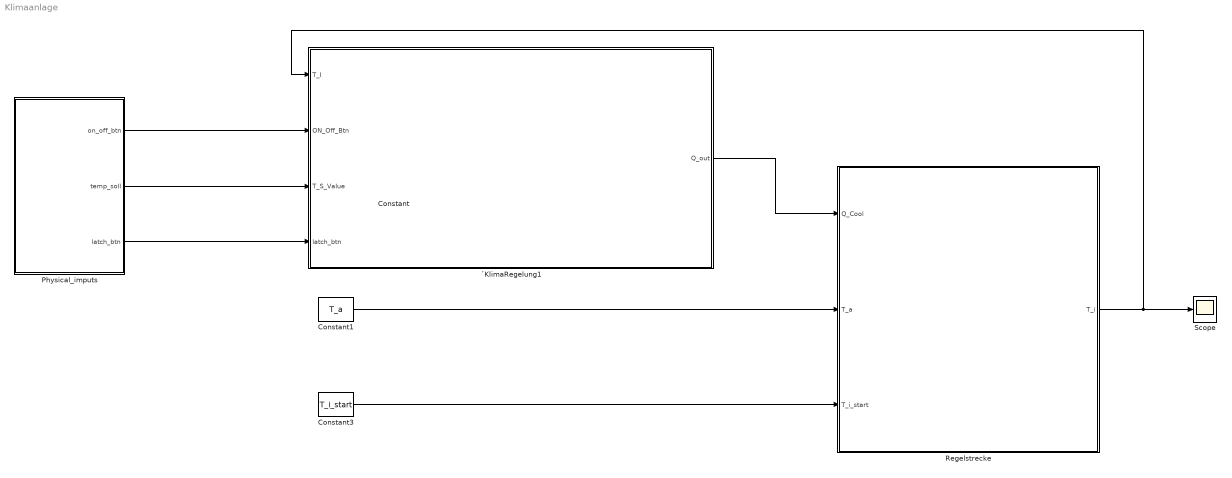
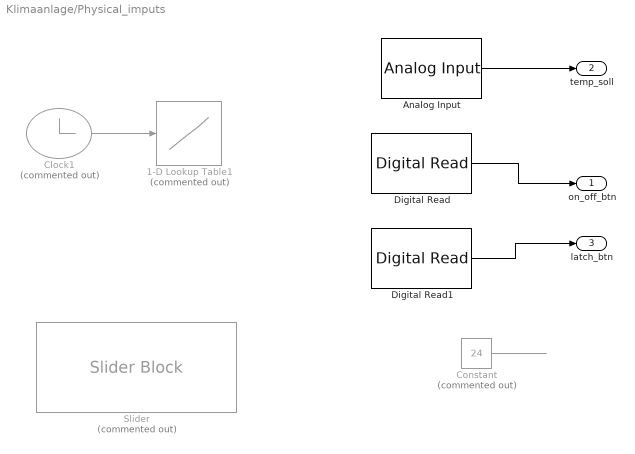
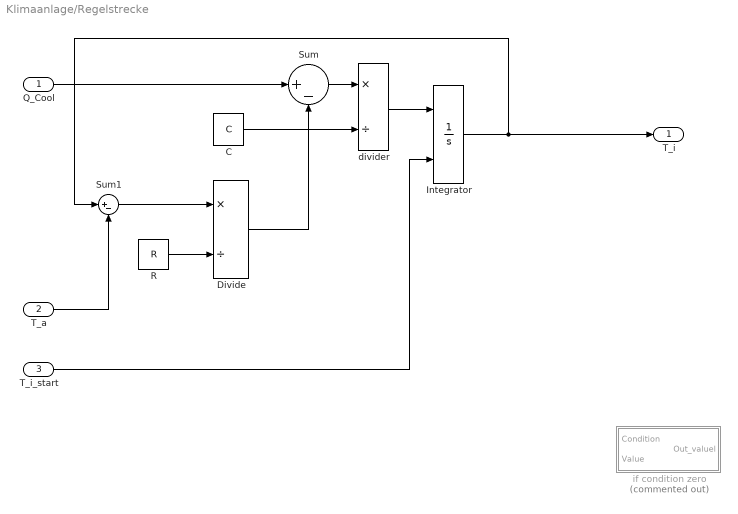
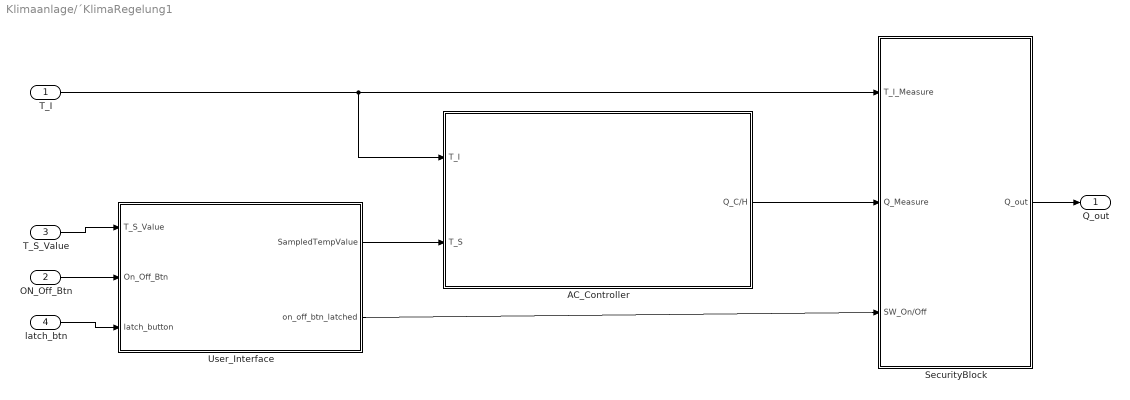
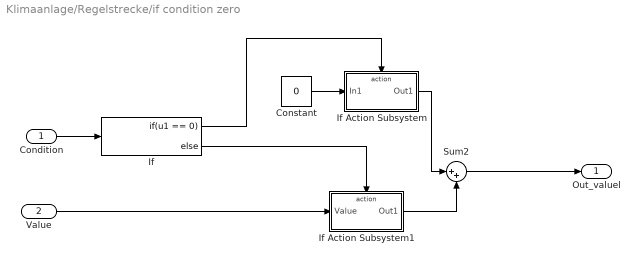
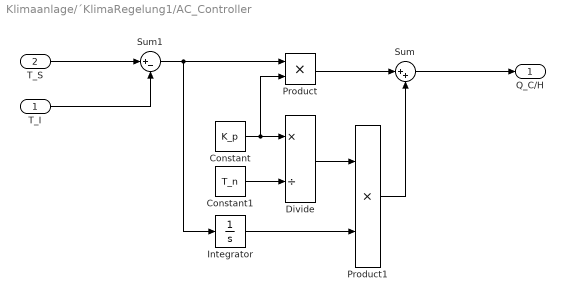
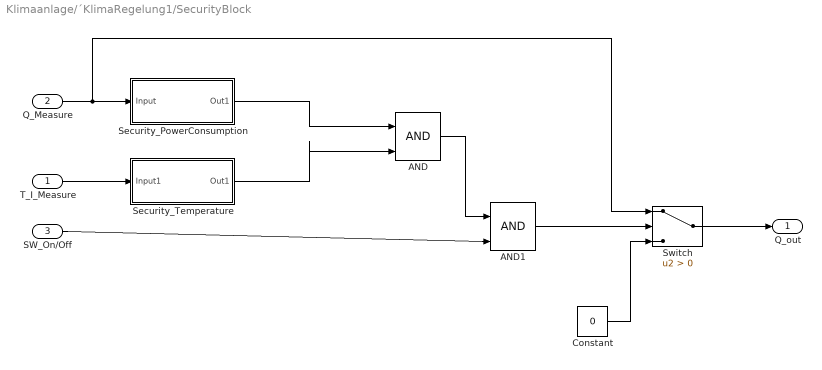
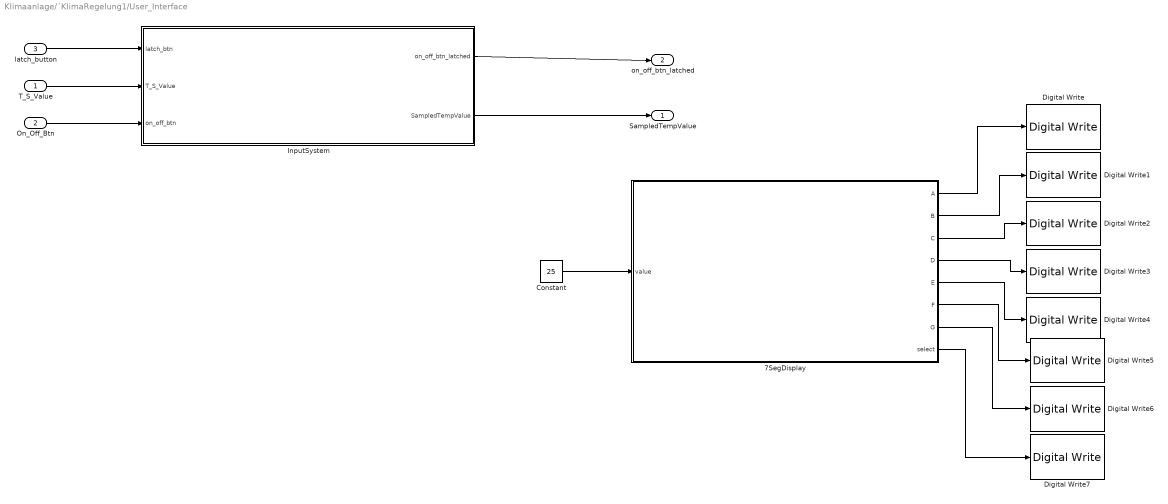
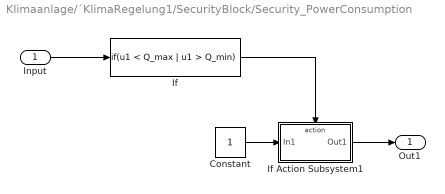
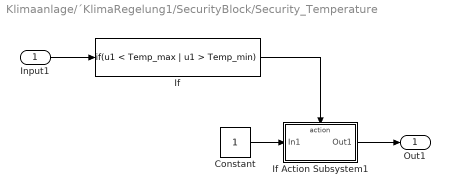
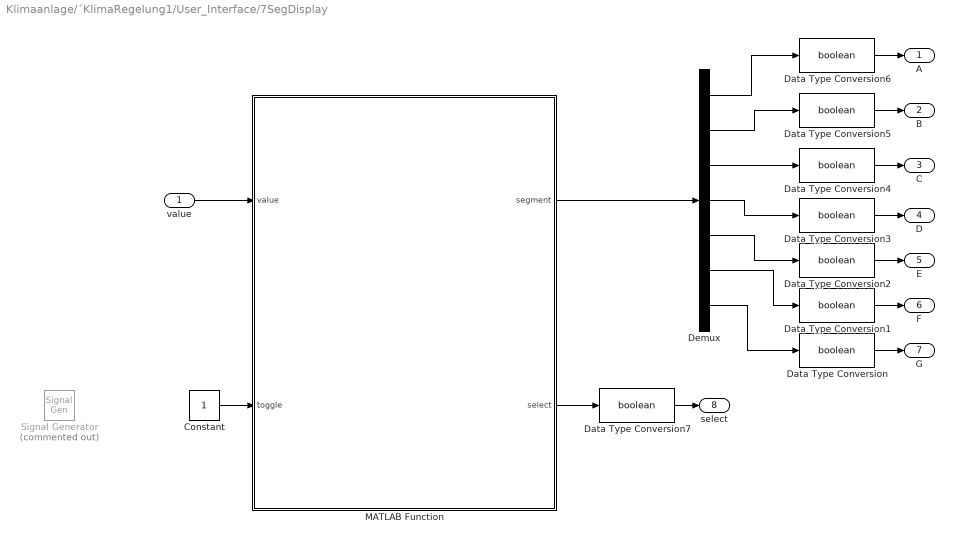
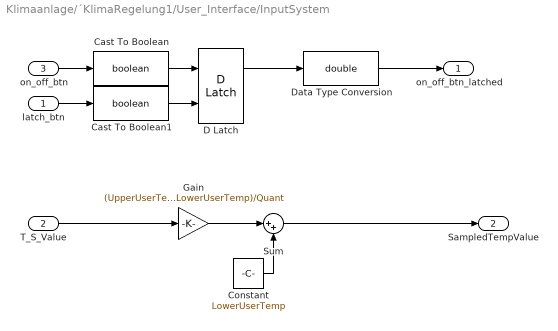
== system Klimaanlage/Regelstrecke/if condition zero/If Action Subsystem ==
  In1 : Inport
  Action Port : ActionPort  ActionPortLabel=if(u1 == 0)
  Out1 : Outport
  wires:
  In1/1 -> Out1/1

== system Klimaanlage/Regelstrecke/if condition zero/If Action Subsystem1 ==
  Value : Inport
  Action Port : ActionPort  ActionPortLabel=else
  Out1 : Outport
  wires:
  Value/1 -> Out1/1

== system Klimaanlage/´KlimaRegelung1/SecurityBlock/Security_PowerConsumption/If Action Subsystem1 ==
  In1 : Inport
  Action Port : ActionPort  ActionPortLabel=if(u1 < Q_max | u1 > Q_min)
  Out1 : Outport
  wires:
  In1/1 -> Out1/1

== system Klimaanlage/´KlimaRegelung1/SecurityBlock/Security_Temperature/If Action Subsystem1 ==
  In1 : Inport
  Action Port : ActionPort  ActionPortLabel=if(u1 < Temp_max | u1 > Temp_min)
  Out1 : Outport
  wires:
  In1/1 -> Out1/1

== matlab function Klimaanlage/´KlimaRegelung1/User_Interface/7SegDisplay/MATLAB Function ==
function [segment, select] = SevenSegmentControl(value, toggle)
% Eingänge:
% value: Zahlenwert (0–99), der angezeigt werden soll
% toggle: Umschaltsignal (0 oder 1) zum Wechsel zwischen Zehner- und Einerstelle

% Ausgänge:
% segment: 8-Bit-Signal für die Segmente (a-g und dp)
% select: 2-Bit-Signal zur Aktivierung eines Displays

% Begrenzung des Werts auf den Bereich 0–99
value = max(0, min(99, value));

% Segment-Codes für 0–9 (a-g, dp: [abcdefg.dp])
segments = [
    0,1,1,1,1,1,1; % 0
    0,0,0,0,1,1,0; % 1
    1,0,1,1,0,1,1; % 2
    0,0,0,1,1,1,1; % 3
    1,1,0,0,1,1,0; % 4
    1,1,0,1,1,0,1; % 5
    1,1,1,1,1,0,1; % 6
    0,0,0,0,1,1,1; % 7
    1,1,1,1,1,1,1; % 8
    1,1,0,1,1,1,1; % 9
];

% Zerlege den Wert in Zehner- und Einerstelle
tens = floor(value / 10);
ones = mod(value, 10);

% Anzeigelogik basierend auf toggle
if toggle == 1
    segment = segments(tens + 1,:); % Zehnerstelle
    select = 0; % Aktiviert das erste Display
else
    segment = segments(ones + 1,:); % Einerstelle
    select = 1; % Aktiviert das zweite Display
end
end

/*
 * Academic License - for use in teaching, academic research, and meeting
 * course requirements at degree granting institutions only.  Not for
 * government, commercial, or other organizational use.
 *
 * File: Klimaanlage.c
 *
 * Code generated for Simulink model 'Klimaanlage'.
 *
 * Model version                  : 1.34
 * Simulink Coder version         : 23.2 (R2023b) 01-Aug-2023
 * C/C++ source code generated on : Mon Nov 25 23:31:42 2024
 *
 * Target selection: ert.tlc
 * Embedded hardware selection: ARM Compatible->ARM Cortex
 * Code generation objectives:
 *    1. Execution efficiency
 *    2. RAM efficiency
 * Validation result: Not run
 */

#include "Klimaanlage.h"
#include <math.h>
#include "rtwtypes.h"
#include <stddef.h>
#define NumBitsPerChar                 8U

/* Private macros used by the generated code to access rtModel */
#ifndef rtmSetFirstInitCond
#define rtmSetFirstInitCond(rtm, val)  ((rtm)->Timing.firstInitCondFlag = (val))
#endif

#ifndef rtmIsFirstInitCond
#define rtmIsFirstInitCond(rtm)        ((rtm)->Timing.firstInitCondFlag)
#endif

#ifndef rtmIsMajorTimeStep
#define rtmIsMajorTimeStep(rtm)        (((rtm)->Timing.simTimeStep) == MAJOR_TIME_STEP)
#endif

#ifndef rtmIsMinorTimeStep
#define rtmIsMinorTimeStep(rtm)        (((rtm)->Timing.simTimeStep) == MINOR_TIME_STEP)
#endif

#ifndef rtmSetTPtr
#define rtmSetTPtr(rtm, val)           ((rtm)->Timing.t = (val))
#endif

/* Continuous states */
X rtX;

/* Disabled State Vector */
XDis rtXDis;

/* Block signals and states (default storage) */
DW rtDW;

/* Real-time model */
static RT_MODEL rtM_;
RT_MODEL *const rtM = &rtM_;

/* private model entry point functions */
extern void Klimaanlage_derivatives(void);

#define NOT_USING_NONFINITE_LITERALS   1

extern real_T rtInf;
extern real_T rtMinusInf;
extern real_T rtNaN;
extern real32_T rtInfF;
extern real32_T rtMinusInfF;
extern real32_T rtNaNF;
static void rt_InitInfAndNaN(size_t realSize);
static boolean_T rtIsInf(real_T value);
static boolean_T rtIsInfF(real32_T value);
static boolean_T rtIsNaN(real_T value);
static boolean_T rtIsNaNF(real32_T value);
typedef struct {
  struct {
    uint32_T wordH;
    uint32_T wordL;
  } words;
} BigEndianIEEEDouble;

typedef struct {
  struct {
    uint32_T wordL;
    uint32_T wordH;
  } words;
} LittleEndianIEEEDouble;

typedef struct {
  union {
    real32_T wordLreal;
    uint32_T wordLuint;
  } wordL;
} IEEESingle;

real_T rtInf;
real_T rtMinusInf;
real_T rtNaN;
real32_T rtInfF;
real32_T rtMinusInfF;
real32_T rtNaNF;
static real_T rtGetInf(void);
static real32_T rtGetInfF(void);
static real_T rtGetMinusInf(void);
static real32_T rtGetMinusInfF(void);
static real_T rtGetNaN(void);
static real32_T rtGetNaNF(void);

/*
 * Initialize the rtInf, rtMinusInf, and rtNaN needed by the
 * generated code. NaN is initialized as non-signaling. Assumes IEEE.
 */
static void rt_InitInfAndNaN(size_t realSize)
{
  (void) (realSize);
  rtNaN = rtGetNaN();
  rtNaNF = rtGetNaNF();
  rtInf = rtGetInf();
  rtInfF = rtGetInfF();
  rtMinusInf = rtGetMinusInf();
  rtMinusInfF = rtGetMinusInfF();
}

/* Test if value is infinite */
static boolean_T rtIsInf(real_T value)
{
  return (boolean_T)((value==rtInf || value==rtMinusInf) ? 1U : 0U);
}

/* Test if single-precision value is infinite */
static boolean_T rtIsInfF(real32_T value)
{
  return (boolean_T)(((value)==rtInfF || (value)==rtMinusInfF) ? 1U : 0U);
}

/* Test if value is not a number */
static boolean_T rtIsNaN(real_T value)
{
  boolean_T result = (boolean_T) 0;
  size_t bitsPerReal = sizeof(real_T) * (NumBitsPerChar);
  if (bitsPerReal == 32U) {
    result = rtIsNaNF((real32_T)value);
  } else {
    union {
      LittleEndianIEEEDouble bitVal;
      real_T fltVal;
    } tmpVal;

    tmpVal.fltVal = value;
    result = (boolean_T)((tmpVal.bitVal.words.wordH & 0x7FF00000) == 0x7FF00000 &&
                         ( (tmpVal.bitVal.words.wordH & 0x000FFFFF) != 0 ||
                          (tmpVal.bitVal.words.wordL != 0) ));
  }

  return result;
}

/* Test if single-precision value is not a number */
static boolean_T rtIsNaNF(real32_T value)
{
  IEEESingle tmp;
  tmp.wordL.wordLreal = value;
  return (boolean_T)( (tmp.wordL.wordLuint & 0x7F800000) == 0x7F800000 &&
                     (tmp.wordL.wordLuint & 0x007FFFFF) != 0 );
}

/*
 * Initialize rtInf needed by the generated code.
 * Inf is initialized as non-signaling. Assumes IEEE.
 */
static real_T rtGetInf(void)
{
  size_t bitsPerReal = sizeof(real_T) * (NumBitsPerChar);
  real_T inf = 0.0;
  if (bitsPerReal == 32U) {
    inf = rtGetInfF();
  } else {
    union {
      LittleEndianIEEEDouble bitVal;
      real_T fltVal;
    } tmpVal;

    tmpVal.bitVal.words.wordH = 0x7FF00000U;
    tmpVal.bitVal.words.wordL = 0x00000000U;
    inf = tmpVal.fltVal;
  }

  return inf;
}

/*
 * Initialize rtInfF needed by the generated code.
 * Inf is initialized as non-signaling. Assumes IEEE.
 */
static real32_T rtGetInfF(void)
{
  IEEESingle infF;
  infF.wordL.wordLuint = 0x7F800000U;
  return infF.wordL.wordLreal;
}

/*
 * Initialize rtMinusInf needed by the generated code.
 * Inf is initialized as non-signaling. Assumes IEEE.
 */
static real_T rtGetMinusInf(void)
{
  size_t bitsPerReal = sizeof(real_T) * (NumBitsPerChar);
  real_T minf = 0.0;
  if (bitsPerReal == 32U) {
    minf = rtGetMinusInfF();
  } else {
    union {
      LittleEndianIEEEDouble bitVal;
      real_T fltVal;
    } tmpVal;

    tmpVal.bitVal.words.wordH = 0xFFF00000U;
    tmpVal.bitVal.words.wordL = 0x00000000U;
    minf = tmpVal.fltVal;
  }

  return minf;
}

/*
 * Initialize rtMinusInfF needed by the generated code.
 * Inf is initialized as non-signaling. Assumes IEEE.
 */
static real32_T rtGetMinusInfF(void)
{
  IEEESingle minfF;
  minfF.wordL.wordLuint = 0xFF800000U;
  return minfF.wordL.wordLreal;
}

/*
 * Initialize rtNaN needed by the generated code.
 * NaN is initialized as non-signaling. Assumes IEEE.
 */
static real_T rtGetNaN(void)
{
  size_t bitsPerReal = sizeof(real_T) * (NumBitsPerChar);
  real_T nan = 0.0;
  if (bitsPerReal == 32U) {
    nan = rtGetNaNF();
  } else {
    union {
      LittleEndianIEEEDouble bitVal;
      real_T fltVal;
    } tmpVal;

    tmpVal.bitVal.words.wordH = 0xFFF80000U;
    tmpVal.bitVal.words.wordL = 0x00000000U;
    nan = tmpVal.fltVal;
  }

  return nan;
}

/*
 * Initialize rtNaNF needed by the generated code.
 * NaN is initialized as non-signaling. Assumes IEEE.
 */
static real32_T rtGetNaNF(void)
{
  IEEESingle nanF = { { 0.0F } };

  nanF.wordL.wordLuint = 0xFFC00000U;
  return nanF.wordL.wordLreal;
}

/*
 * This function updates continuous states using the ODE3 fixed-step
 * solver algorithm
 */
static void rt_ertODEUpdateContinuousStates(RTWSolverInfo *si )
{
  /* Solver Matrices */
  static const real_T rt_ODE3_A[3] = {
    1.0/2.0, 3.0/4.0, 1.0
  };

  static const real_T rt_ODE3_B[3][3] = {
    { 1.0/2.0, 0.0, 0.0 },

    { 0.0, 3.0/4.0, 0.0 },

    { 2.0/9.0, 1.0/3.0, 4.0/9.0 }
  };

  time_T t = rtsiGetT(si);
  time_T tnew = rtsiGetSolverStopTime(si);
  time_T h = rtsiGetStepSize(si);
  real_T *x = rtsiGetContStates(si);
  ODE3_IntgData *id = (ODE3_IntgData *)rtsiGetSolverData(si);
  real_T *y = id->y;
  real_T *f0 = id->f[0];
  real_T *f1 = id->f[1];
  real_T *f2 = id->f[2];
  real_T hB[3];
  int_T i;
  int_T nXc = 2;
  rtsiSetSimTimeStep(si,MINOR_TIME_STEP);

  /* Save the state values at time t in y, we'll use x as ynew. */
  (void) memcpy(y, x,
                (uint_T)nXc*sizeof(real_T));

  /* Assumes that rtsiSetT and ModelOutputs are up-to-date */
  /* f0 = f(t,y) */
  rtsiSetdX(si, f0);
  Klimaanlage_derivatives();

  /* f(:,2) = feval(odefile, t + hA(1), y + f*hB(:,1), args(:)(*)); */
  hB[0] = h * rt_ODE3_B[0][0];
  for (i = 0; i < nXc; i++) {
    x[i] = y[i] + (f0[i]*hB[0]);
  }

  rtsiSetT(si, t + h*rt_ODE3_A[0]);
  rtsiSetdX(si, f1);
  Klimaanlage_step();
  Klimaanlage_derivatives();

  /* f(:,3) = feval(odefile, t + hA(2), y + f*hB(:,2), args(:)(*)); */
  for (i = 0; i <= 1; i++) {
    hB[i] = h * rt_ODE3_B[1][i];
  }

  for (i = 0; i < nXc; i++) {
    x[i] = y[i] + (f0[i]*hB[0] + f1[i]*hB[1]);
  }

  rtsiSetT(si, t + h*rt_ODE3_A[1]);
  rtsiSetdX(si, f2);
  Klimaanlage_step();
  Klimaanlage_derivatives();

  /* tnew = t + hA(3);
     ynew = y + f*hB(:,3); */
  for (i = 0; i <= 2; i++) {
    hB[i] = h * rt_ODE3_B[2][i];
  }

  for (i = 0; i < nXc; i++) {
    x[i] = y[i] + (f0[i]*hB[0] + f1[i]*hB[1] + f2[i]*hB[2]);
  }

  rtsiSetT(si, tnew);
  rtsiSetSimTimeStep(si,MAJOR_TIME_STEP);
}

/* Model step function */
void Klimaanlage_step(void)
{
  real_T rtb_select;
  real_T y;
  int32_T i;
  int32_T i_0;
  int8_T rtb_segment[7];
  int8_T rtAction;
  boolean_T rtb_DigitalRead_0;
  boolean_T tmp;
  static const int8_T segments[70] = { 0, 0, 1, 0, 1, 1, 1, 0, 1, 1, 1, 0, 0, 0,
    1, 1, 1, 0, 1, 1, 1, 0, 1, 0, 0, 0, 1, 0, 1, 0, 1, 0, 1, 1, 0, 1, 1, 0, 1, 1,
    1, 1, 0, 1, 1, 1, 1, 1, 1, 1, 1, 1, 1, 1, 1, 0, 0, 1, 1, 1, 1, 0, 1, 1, 0, 1,
    1, 1, 1, 1 };

  if (rtmIsMajorTimeStep(rtM)) {
    /* set solver stop time */
    rtsiSetSolverStopTime(&rtM->solverInfo,((rtM->Timing.clockTick0+1)*
      rtM->Timing.stepSize0));
  }                                    /* end MajorTimeStep */

  /* Update absolute time of base rate at minor time step */
  if (rtmIsMinorTimeStep(rtM)) {
    rtM->Timing.t[0] = rtsiGetT(&rtM->solverInfo);
  }

  /* SignalGenerator: '<S11>/Signal Generator' */
  rtb_select = rtP.SignalGenerator_Frequency * rtM->Timing.t[0];

  /* MATLAB Function: '<S11>/MATLAB Function' incorporates:
   *  Constant: '<S6>/Constant'
   */
  if ((rtP.Constant_Value >= 99.0) || rtIsNaN(rtP.Constant_Value)) {
    y = 99.0;
  } else {
    y = rtP.Constant_Value;
  }

  if (y <= 0.0) {
    y = 0.0;
  }

  /* SignalGenerator: '<S11>/Signal Generator' */
  if (rtb_select - floor(rtb_select) >= 0.5) {
    rtb_select = rtP.SignalGenerator_Amplitude;
  } else {
    rtb_select = -rtP.SignalGenerator_Amplitude;
  }

  /* MATLAB Function: '<S11>/MATLAB Function' incorporates:
   *  SignalGenerator: '<S11>/Signal Generator'
   */
  if (rtb_select == 1.0) {
    i = (int32_T)floor(y / 10.0) + 1;
    for (i_0 = 0; i_0 < 7; i_0++) {
      rtb_segment[i_0] = segments[(10 * i_0 + i) - 1];
    }

    rtb_select = 0.0;
  } else {
    if (y == 0.0) {
      rtb_select = 0.0;
    } else {
      rtb_select = fmod(y, 10.0);
    }

    for (i = 0; i < 7; i++) {
      rtb_segment[i] = segments[((int32_T)(rtb_select + 1.0) + 10 * i) - 1];
    }

    rtb_select = 1.0;
  }

  /* MATLABSystem: '<S6>/Digital Write' incorporates:
   *  DataTypeConversion: '<S11>/Data Type Conversion6'
   */
  MW_digitalIO_write(rtDW.obj_k.MW_DIGITALIO_HANDLE, rtb_segment[0] != 0);

  /* MATLABSystem: '<S6>/Digital Write1' incorporates:
   *  DataTypeConversion: '<S11>/Data Type Conversion5'
   */
  MW_digitalIO_write(rtDW.obj_mi.MW_DIGITALIO_HANDLE, rtb_segment[1] != 0);

  /* MATLABSystem: '<S6>/Digital Write2' incorporates:
   *  DataTypeConversion: '<S11>/Data Type Conversion4'
   */
  MW_digitalIO_write(rtDW.obj_e.MW_DIGITALIO_HANDLE, rtb_segment[2] != 0);

  /* MATLABSystem: '<S6>/Digital Write3' incorporates:
   *  DataTypeConversion: '<S11>/Data Type Conversion3'
   */
  MW_digitalIO_write(rtDW.obj_m.MW_DIGITALIO_HANDLE, rtb_segment[3] != 0);

  /* MATLABSystem: '<S6>/Digital Write4' incorporates:
   *  DataTypeConversion: '<S11>/Data Type Conversion2'
   */
  MW_digitalIO_write(rtDW.obj_ga.MW_DIGITALIO_HANDLE, rtb_segment[4] != 0);

  /* MATLABSystem: '<S6>/Digital Write5' incorporates:
   *  DataTypeConversion: '<S11>/Data Type Conversion1'
   */
  MW_digitalIO_write(rtDW.obj_i.MW_DIGITALIO_HANDLE, rtb_segment[5] != 0);

  /* MATLABSystem: '<S6>/Digital Write6' incorporates:
   *  DataTypeConversion: '<S11>/Data Type Conversion'
   */
  MW_digitalIO_write(rtDW.obj_d.MW_DIGITALIO_HANDLE, rtb_segment[6] != 0);

  /* MATLABSystem: '<S6>/Digital Write7' incorporates:
   *  DataTypeConversion: '<S11>/Data Type Conversion7'
   */
  MW_digitalIO_write(rtDW.obj_c.MW_DIGITALIO_HANDLE, rtb_select != 0.0);
  if (rtmIsMajorTimeStep(rtM)) {
    /* Constant: '<Root>/Constant3' */
    rtDW.Constant3 = rtP.T_i_start;
  }

  /* Integrator: '<S2>/Integrator' */
  if (rtDW.Integrator_IWORK != 0) {
    rtX.Integrator_CSTATE = rtDW.Constant3;
  }

  /* MATLABSystem: '<S1>/Analog Input' */
  if (rtDW.obj.SampleTime != rtP.AnalogInput_SampleTime) {
    rtDW.obj.SampleTime = rtP.AnalogInput_SampleTime;
  }

  MW_AnalogIn_Start(rtDW.obj.MW_ANALOGIN_HANDLE);
  MW_AnalogInSingle_ReadResult(rtDW.obj.MW_ANALOGIN_HANDLE, &rtb_select, 7);

  /* Sum: '<S4>/Sum1' incorporates:
   *  Constant: '<S12>/Constant'
   *  Gain: '<S12>/Gain'
   *  Integrator: '<S2>/Integrator'
   *  MATLABSystem: '<S1>/Analog Input'
   *  Sum: '<S12>/Sum'
   */
  rtDW.Sum1 = ((real_T)(int32_T)floor((rtP.UpperUserTemp - rtP.LowerUserTemp) /
    rtP.Quant * rtb_select) + rtP.LowerUserTemp) - rtX.Integrator_CSTATE;
  if (rtmIsMajorTimeStep(rtM)) {
    /* Product: '<S4>/Divide' incorporates:
     *  Constant: '<S4>/Constant'
     *  Constant: '<S4>/Constant1'
     */
    rtDW.Divide = rtP.K_p / rtP.T_n;
  }

  /* Sum: '<S4>/Sum' incorporates:
   *  Constant: '<S4>/Constant'
   *  Integrator: '<S4>/Integrator'
   *  Product: '<S4>/Product'
   *  Product: '<S4>/Product1'
   */
  rtb_select = rtDW.Sum1 * rtP.K_p + rtDW.Divide * rtX.Integrator_CSTATE_k;

  /* If: '<S7>/If' */
  rtAction = -1;
  if (rtsiIsModeUpdateTimeStep(&rtM->solverInfo)) {
    if ((rtb_select < 5.0) || (rtb_select > -5.0)) {
      rtAction = 0;
    }

    rtDW.If_ActiveSubsystem = rtAction;
  } else {
    rtAction = rtDW.If_ActiveSubsystem;
  }

  if (rtAction == 0) {
    /* Outputs for IfAction SubSystem: '<S7>/If Action Subsystem1' incorporates:
     *  ActionPort: '<S9>/Action Port'
     */
    if (rtmIsMajorTimeStep(rtM)) {
      /* SignalConversion generated from: '<S9>/In1' incorporates:
       *  Constant: '<S7>/Constant'
       */
      rtDW.In1_g = rtP.Constant_Value_g;
    }

    /* End of Outputs for SubSystem: '<S7>/If Action Subsystem1' */
  }

  /* End of If: '<S7>/If' */

  /* If: '<S8>/If' incorporates:
   *  Integrator: '<S2>/Integrator'
   */
  rtAction = -1;
  if (rtsiIsModeUpdateTimeStep(&rtM->solverInfo)) {
    if ((rtX.Integrator_CSTATE < 50.0) || (rtX.Integrator_CSTATE > -20.0)) {
      rtAction = 0;
    }

    rtDW.If_ActiveSubsystem_i = rtAction;
  } else {
    rtAction = rtDW.If_ActiveSubsystem_i;
  }

  if (rtAction == 0) {
    /* Outputs for IfAction SubSystem: '<S8>/If Action Subsystem1' incorporates:
     *  ActionPort: '<S10>/Action Port'
     */
    if (rtmIsMajorTimeStep(rtM)) {
      /* SignalConversion generated from: '<S10>/In1' incorporates:
       *  Constant: '<S8>/Constant'
       */
      rtDW.In1 = rtP.Constant_Value_i;
    }

    /* End of Outputs for SubSystem: '<S8>/If Action Subsystem1' */
  }

  /* End of If: '<S8>/If' */
  if (rtmIsMajorTimeStep(rtM)) {
    /* Logic: '<S5>/AND' */
    rtDW.AND = ((rtDW.In1_g != 0.0) && (rtDW.In1 != 0.0));
  }

  /* MATLABSystem: '<S1>/Digital Read' */
  if (rtDW.obj_g.SampleTime != rtP.DigitalRead_SampleTime) {
    rtDW.obj_g.SampleTime = rtP.DigitalRead_SampleTime;
  }

  rtb_DigitalRead_0 = MW_digitalIO_read(rtDW.obj_g.MW_DIGITALIO_HANDLE);
  if (rtmIsMajorTimeStep(rtM)) {
    /* MATLABSystem: '<S1>/Digital Read1' */
    if (rtDW.obj_j.SampleTime != rtP.DigitalRead1_SampleTime) {
      rtDW.obj_j.SampleTime = rtP.DigitalRead1_SampleTime;
    }

    tmp = MW_digitalIO_read(rtDW.obj_j.MW_DIGITALIO_HANDLE);

    /* Outputs for Enabled SubSystem: '<S14>/D Latch' incorporates:
     *  EnablePort: '<S15>/C'
     */
    if (rtsiIsModeUpdateTimeStep(&rtM->solverInfo)) {
      /* MATLABSystem: '<S1>/Digital Read1' */
      rtDW.DLatch_MODE = tmp;
    }

    /* End of Outputs for SubSystem: '<S14>/D Latch' */
  }

  /* Outputs for Enabled SubSystem: '<S14>/D Latch' incorporates:
   *  EnablePort: '<S15>/C'
   */
  if (rtDW.DLatch_MODE) {
    /* SignalConversion generated from: '<S15>/D' incorporates:
     *  MATLABSystem: '<S1>/Digital Read'
     */
    rtDW.D = rtb_DigitalRead_0;
  }

  /* End of Outputs for SubSystem: '<S14>/D Latch' */

  /* Switch: '<S5>/Switch' incorporates:
   *  Constant: '<S5>/Constant'
   *  DataTypeConversion: '<S12>/Data Type Conversion'
   *  Logic: '<S5>/AND1'
   */
  if ((!rtDW.AND) || (!rtDW.D)) {
    rtb_select = rtP.Constant_Value_j;
  }

  /* Product: '<S2>/divider' incorporates:
   *  Constant: '<Root>/Constant1'
   *  Constant: '<S2>/C'
   *  Constant: '<S2>/R'
   *  Integrator: '<S2>/Integrator'
   *  Product: '<S2>/Divide'
   *  Sum: '<S2>/Sum'
   *  Sum: '<S2>/Sum1'
   *  Switch: '<S5>/Switch'
   */
  rtDW.divider = (rtb_select - (rtX.Integrator_CSTATE - rtP.T_a) / rtP.R) /
    rtP.C;
  if (rtmIsMajorTimeStep(rtM)) {
    /* Update for Integrator: '<S2>/Integrator' */
    rtDW.Integrator_IWORK = 0;
  }                                    /* end MajorTimeStep */

  if (rtmIsMajorTimeStep(rtM)) {
    rt_ertODEUpdateContinuousStates(&rtM->solverInfo);

    /* Update absolute time for base rate */
    /* The "clockTick0" counts the number of times the code of this task has
     * been executed. The absolute time is the multiplication of "clockTick0"
     * and "Timing.stepSize0". Size of "clockTick0" ensures timer will not
     * overflow during the application lifespan selected.
     */
    ++rtM->Timing.clockTick0;
    rtM->Timing.t[0] = rtsiGetSolverStopTime(&rtM->solverInfo);

    {
      /* Update absolute timer for sample time: [0.0033333333333333335s, 0.0s] */
      /* The "clockTick1" counts the number of times the code of this task has
       * been executed. The resolution of this integer timer is 0.0033333333333333335, which is the step size
       * of the task. Size of "clockTick1" ensures timer will not overflow during the
       * application lifespan selected.
       */
      rtM->Timing.clockTick1++;
    }
  }                                    /* end MajorTimeStep */
}
